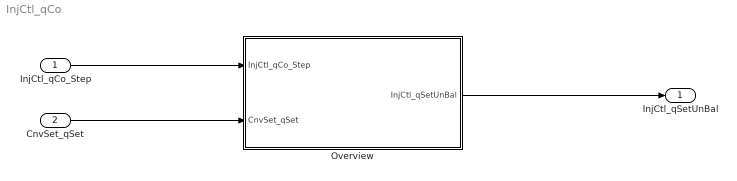
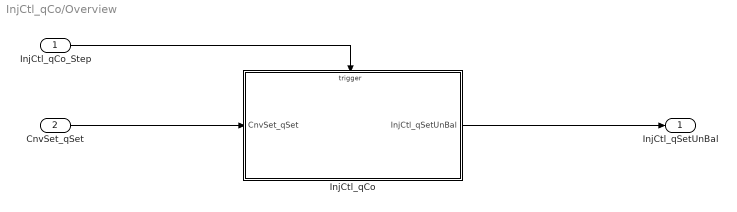
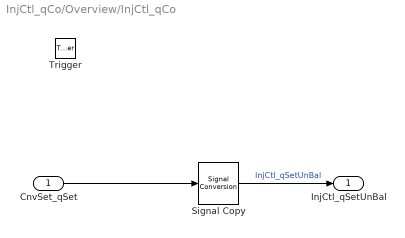
/*
 * File: InjCtl_qCo.c
 *
 * Code generated for Simulink model 'InjCtl_qCo'.
 *
 * Model version                  : 1.60
 * Simulink Coder version         : 9.4 (R2020b) 29-Jul-2020
 * C/C++ source code generated on : Thu Feb  4 09:42:08 2021
 *
 * Target selection: ert.tlc
 * Embedded hardware selection: ARM Compatible->ARM Cortex
 * Code generation objectives: Unspecified
 * Validation result: Not run
 */

#include "InjCtl_qCo.h"
#ifndef UCHAR_MAX
#include <limits.h>
#endif

#if ( UCHAR_MAX != (0xFFU) ) || ( SCHAR_MAX != (0x7F) )
#error Code was generated for compiler with different sized uchar/char. \
Consider adjusting Test hardware word size settings on the \
Hardware Implementation pane to match your compiler word sizes as \
defined in limits.h of the compiler. Alternatively, you can \
select the Test hardware is the same as production hardware option and \
select the Enable portable word sizes option on the Code Generation > \
Verification pane for ERT based targets, which will disable the \
preprocessor word size checks.
#endif

#if ( USHRT_MAX != (0xFFFFU) ) || ( SHRT_MAX != (0x7FFF) )
#error Code was generated for compiler with different sized ushort/short. \
Consider adjusting Test hardware word size settings on the \
Hardware Implementation pane to match your compiler word sizes as \
defined in limits.h of the compiler. Alternatively, you can \
select the Test hardware is the same as production hardware option and \
select the Enable portable word sizes option on the Code Generation > \
Verification pane for ERT based targets, which will disable the \
preprocessor word size checks.
#endif

#if ( UINT_MAX != (0xFFFFFFFFU) ) || ( INT_MAX != (0x7FFFFFFF) )
#error Code was generated for compiler with different sized uint/int. \
Consider adjusting Test hardware word size settings on the \
Hardware Implementation pane to match your compiler word sizes as \
defined in limits.h of the compiler. Alternatively, you can \
select the Test hardware is the same as production hardware option and \
select the Enable portable word sizes option on the Code Generation > \
Verification pane for ERT based targets, which will disable the \
preprocessor word size checks.
#endif

#if ( ULONG_MAX != (0xFFFFFFFFU) ) || ( LONG_MAX != (0x7FFFFFFF) )
#error Code was generated for compiler with different sized ulong/long. \
Consider adjusting Test hardware word size settings on the \
Hardware Implementation pane to match your compiler word sizes as \
defined in limits.h of the compiler. Alternatively, you can \
select the Test hardware is the same as production hardware option and \
select the Enable portable word sizes option on the Code Generation > \
Verification pane for ERT based targets, which will disable the \
preprocessor word size checks.
#endif

/* Exported block signals */
InjMass InjCtl_qSetUnBal;              /* '<S2>/Signal Copy'
                                        * Torque generating engine fuel injection quantity
                                        */

/* Real-time model */
static RT_MODEL_InjCtl_qCo_T InjCtl_qCo_M_;
RT_MODEL_InjCtl_qCo_T *const InjCtl_qCo_M = &InjCtl_qCo_M_;

/* Model step function */
void InjCtl_qCo_Step(void)
{
  /* RootInportFunctionCallGenerator generated from: '<Root>/InjCtl_qCo_Step' incorporates:
   *  SubSystem: '<S1>/InjCtl_qCo'
   */
  /* SignalConversion: '<S2>/Signal Copy' incorporates:
   *  Inport: '<Root>/CnvSet_qSet'
   *
   * Block description for '<Root>/CnvSet_qSet':
   *  Injection quantity current path
   */
  InjCtl_qSetUnBal = CnvSet_qSet;

  /* End of Outputs for RootInportFunctionCallGenerator generated from: '<Root>/InjCtl_qCo_Step' */
}
